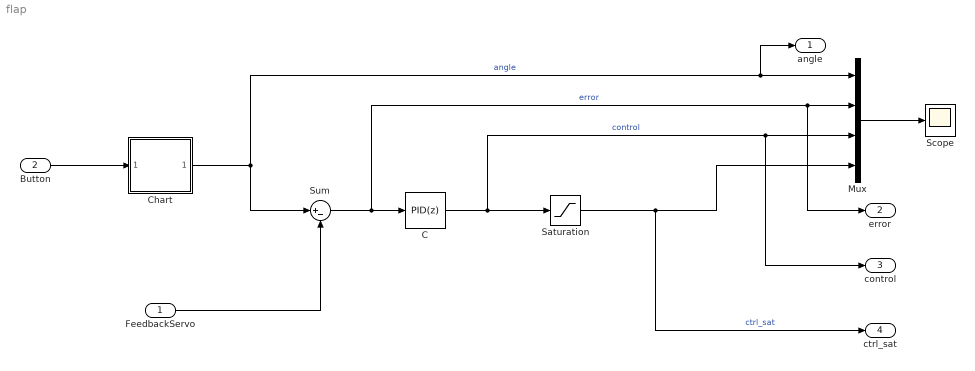
== stateflow chart flap/Chart ==
  state Taxing
    entry:
    angle=0;
  state Take_off
    entry:
    angle=90;
  state Cruise
    entry:
    angle=30;
  state Landing
    entry:
    angle=90;
  state Idle
    entry:
    angle=0;
  (default) -> (junction 31)
  Taxing -> Take_off : after(1,sec)
  Take_off -> Cruise : after(2,sec)
  Cruise -> Landing : after(4,sec)
  (junction 31) -> Idle
  Idle -> Taxing : [button==1]
  data: angle output; button input

/*
 * File: flap.c
 *
 * Code generated for Simulink model 'flap'.
 *
 * Model version                  : 1.30
 * Simulink Coder version         : 9.9 (R2023a) 19-Nov-2022
 * C/C++ source code generated on : Tue Mar 24 10:57:54 2026
 *
 * Target selection: ert.tlc
 * Embedded hardware selection: ARM Compatible->ARM Cortex-M
 * Code generation objectives:
 *    1. Execution efficiency
 *    2. Traceability
 * Validation result: Not run
 */

#include "flap.h"
#include <stdint.h>

/* Named constants for Chart: '<Root>/Chart' */
#define IN_Cruise                      ((uint8_t)1U)
#define IN_Idle                        ((uint8_t)2U)
#define IN_Landing                     ((uint8_t)3U)
#define IN_Take_off                    ((uint8_t)4U)
#define IN_Taxing                      ((uint8_t)5U)

/* Block signals and states (default storage) */
DW rtDW;

/* External inputs (root inport signals with default storage) */
ExtU rtU;

/* External outputs (root outports fed by signals with default storage) */
ExtY rtY;

/* Model step function */
void flap_step(void)
{
  double rtb_FilterCoefficient;
  int32_t rtb_angle;

  /* Chart: '<Root>/Chart' incorporates:
   *  Inport: '<Root>/Button'
   */
  if (rtDW.temporalCounter_i1 < 63U) {
    rtDW.temporalCounter_i1++;
  }

  if (rtDW.is_active_c3_flap == 0U) {
    rtDW.is_active_c3_flap = 1U;
    rtDW.is_c3_flap = IN_Idle;
    rtb_angle = 0;
  } else {
    switch (rtDW.is_c3_flap) {
     case IN_Cruise:
      rtb_angle = 30;
      if (rtDW.temporalCounter_i1 >= 40U) {
        rtDW.is_c3_flap = IN_Landing;
        rtb_angle = 90;
      }
      break;

     case IN_Idle:
      rtb_angle = 0;
      if (rtU.Button == 1.0) {
        rtDW.is_c3_flap = IN_Taxing;
        rtDW.temporalCounter_i1 = 0U;
      }
      break;

     case IN_Landing:
      rtb_angle = 90;
      break;

     case IN_Take_off:
      rtb_angle = 90;
      if (rtDW.temporalCounter_i1 >= 20U) {
        rtDW.is_c3_flap = IN_Cruise;
        rtDW.temporalCounter_i1 = 0U;
        rtb_angle = 30;
      }
      break;

     default:
      /* case IN_Taxing: */
      rtb_angle = 0;
      if (rtDW.temporalCounter_i1 >= 10U) {
        rtDW.is_c3_flap = IN_Take_off;
        rtDW.temporalCounter_i1 = 0U;
        rtb_angle = 90;
      }
      break;
    }
  }

  /* End of Chart: '<Root>/Chart' */

  /* Outport: '<Root>/angle' */
  rtY.angle = rtb_angle;

  /* Sum: '<Root>/Sum' incorporates:
   *  Inport: '<Root>/FeedbackServo'
   *  Outport: '<Root>/angle'
   */
  rtY.error = (double)rtb_angle - rtU.FeedbackServo;

  /* Gain: '<S37>/Filter Coefficient' incorporates:
   *  DiscreteIntegrator: '<S29>/Filter'
   *  Gain: '<S28>/Derivative Gain'
   *  Sum: '<S29>/SumD'
   */
  rtb_FilterCoefficient = (0.1 * rtY.error - rtDW.Filter_DSTATE) * 100.0;

  /* Sum: '<S43>/Sum' incorporates:
   *  DiscreteIntegrator: '<S34>/Integrator'
   */
  rtY.control = (rtY.error + rtDW.Integrator_DSTATE) + rtb_FilterCoefficient;

  /* Saturate: '<Root>/Saturation' */
  if (rtY.control > 1.0) {
    /* Outport: '<Root>/ctrl_sat' */
    rtY.ctrl_sat = 1.0;
  } else if (rtY.control < 0.0) {
    /* Outport: '<Root>/ctrl_sat' */
    rtY.ctrl_sat = 0.0;
  } else {
    /* Outport: '<Root>/ctrl_sat' */
    rtY.ctrl_sat = rtY.control;
  }

  /* End of Saturate: '<Root>/Saturation' */

  /* Update for DiscreteIntegrator: '<S29>/Filter' */
  rtDW.Filter_DSTATE += 0.1 * rtb_FilterCoefficient;

  /* Update for DiscreteIntegrator: '<S34>/Integrator' */
  rtDW.Integrator_DSTATE += 0.1 * rtY.error;
}
